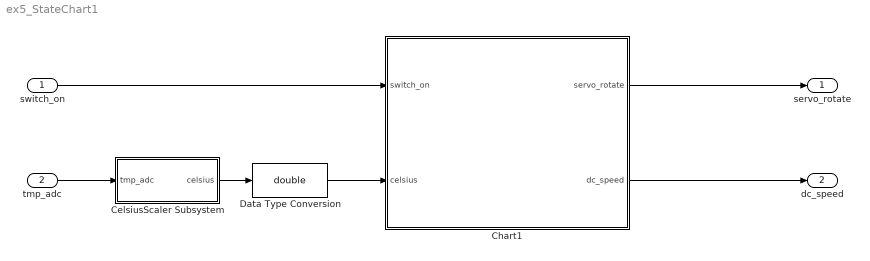
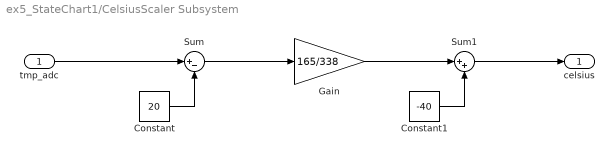
== stateflow chart ex5_StateChart1/Chart1 ==
  state DC_Motor [parallel]
    state check
    check -> check [order 1] : [ctr_dc < (DC_PERIOD / STEP_SIZE) - 1]{ctr_dc = ctr_dc + 1}
    (default) -> check
    check -> check [order 2] : [ctr_dc >= (DC_PERIOD / STEP_SIZE) - 1]{dc_speed = (celsius - 20) * 255 / (16530 / 60); ctr_dc = 0;}
  state Servo_Motor [parallel]
    state Natural
    state ClockWise
    state Counter_ClockWise
    (default) -> Natural
    Natural -> Natural [order 2] : [ctr_servo < ((SLOW_MODE_DURATION - (switch_on * (SLOW_MODE_DURATION - FAST_MODE_DURATION))) / STEP_SIZE) - 1]{ctr_servo = ctr_servo + 1}
    Counter_ClockWise -> Natural [order 2] : [ctr_servo >= (SERVO_MAX_ANGLE / SERVO_ANGLE_CHANGE) - 1]{servo_rotate = 0; ctr_servo = 0}
    Natural -> ClockWise [order 1] : [ctr_servo >= ((SLOW_MODE_DURATION - (switch_on * (SLOW_MODE_DURATION - FAST_MODE_DURATION))) / STEP_SIZE) - 1]{servo_rotate = 1; ctr_servo = 0}
    ClockWise -> ClockWise [order 2] : [ctr_servo < (SERVO_MAX_ANGLE / SERVO_ANGLE_CHANGE) - 1]{ctr_servo = ctr_servo + 1}
    ClockWise -> Counter_ClockWise [order 1] : [ctr_servo >= (SERVO_MAX_ANGLE / SERVO_ANGLE_CHANGE) - 1]{servo_rotate = -1; ctr_servo = 0}
    Counter_ClockWise -> Counter_ClockWise [order 1] : [ctr_servo < (SERVO_MAX_ANGLE / SERVO_ANGLE_CHANGE) - 1]{ctr_servo = ctr_servo + 1}
  data: SLOW_MODE_DURATION constant uint16 =10000; servo_rotate output int16 =0; FAST_MODE_DURATION constant uint16 =5000; STEP_SIZE constant uint16 =100; switch_on input uint16; ctr_dc local uint16 =0; ctr_servo local uint16 =0; SERVO_MAX_ANGLE constant uint16 =180; SERVO_ANGLE_CHANGE constant uint16 =5; DC_PERIOD constant uint16 =1000; dc_speed output double =0; celsius input double

/*
 * File: ex5_StateChart1.c
 *
 * Code generated for Simulink model 'ex5_StateChart1'.
 *
 * Model version                  : 1.30
 * Simulink Coder version         : 24.1 (R2024a) 19-Nov-2023
 * C/C++ source code generated on : Sun Dec 29 01:36:40 2024
 *
 * Target selection: ert.tlc
 * Embedded hardware selection: Atmel->AVR
 * Code generation objectives: Unspecified
 * Validation result: Not run
 */

#include "ex5_StateChart1.h"
#include "rtwtypes.h"
#include "ex5_StateChart1_private.h"

/* Named constants for Chart: '<Root>/Chart1' */
#define ex5_StateC_IN_Counter_ClockWise ((uint8_T)2U)
#define ex5_StateCha_FAST_MODE_DURATION (5000U)
#define ex5_StateChart1_IN_ClockWise   ((uint8_T)1U)
#define ex5_StateChart1_IN_Natural     ((uint8_T)3U)
#define ex5_StateChart1_STEP_SIZE      (100U)

/* Block states (default storage) */
DW_ex5_StateChart1_T ex5_StateChart1_DW;

/* External inputs (root inport signals with default storage) */
ExtU_ex5_StateChart1_T ex5_StateChart1_U;

/* External outputs (root outports fed by signals with default storage) */
ExtY_ex5_StateChart1_T ex5_StateChart1_Y;

/* Real-time model */
static RT_MODEL_ex5_StateChart1_T ex5_StateChart1_M_;
RT_MODEL_ex5_StateChart1_T *const ex5_StateChart1_M = &ex5_StateChart1_M_;

/* Model step function */
void ex5_StateChart1_step(void)
{
  uint32_T tmp;
  uint32_T tmp_0;
  int16_T z;
  uint16_T qY;

  /* Chart: '<Root>/Chart1' incorporates:
   *  Inport: '<Root>/switch_on'
   */
  if (ex5_StateChart1_DW.is_active_c2_ex5_StateChart1 == 0U) {
    ex5_StateChart1_DW.is_active_c2_ex5_StateChart1 = 1U;
    ex5_StateChart1_DW.is_Servo_Motor = ex5_StateChart1_IN_Natural;
  } else {
    switch (ex5_StateChart1_DW.is_Servo_Motor) {
     case ex5_StateChart1_IN_ClockWise:
      if (ex5_StateChart1_DW.ctr_servo >= 35U) {
        /* Outport: '<Root>/servo_rotate' */
        ex5_StateChart1_Y.servo_rotate = -1;
        ex5_StateChart1_DW.ctr_servo = 0U;
        ex5_StateChart1_DW.is_Servo_Motor = ex5_StateC_IN_Counter_ClockWise;
      } else {
        qY = ex5_StateChart1_DW.ctr_servo + /*MW:OvSatOk*/ 1U;
        if (ex5_StateChart1_DW.ctr_servo + 1U < ex5_StateChart1_DW.ctr_servo) {
          qY = MAX_uint16_T;
        }

        ex5_StateChart1_DW.ctr_servo = qY;
        ex5_StateChart1_DW.is_Servo_Motor = ex5_StateChart1_IN_ClockWise;
      }
      break;

     case ex5_StateC_IN_Counter_ClockWise:
      if (ex5_StateChart1_DW.ctr_servo < 35U) {
        qY = ex5_StateChart1_DW.ctr_servo + /*MW:OvSatOk*/ 1U;
        if (ex5_StateChart1_DW.ctr_servo + 1U < ex5_StateChart1_DW.ctr_servo) {
          qY = MAX_uint16_T;
        }

        ex5_StateChart1_DW.ctr_servo = qY;
        ex5_StateChart1_DW.is_Servo_Motor = ex5_StateC_IN_Counter_ClockWise;
      } else {
        /* Outport: '<Root>/servo_rotate' */
        ex5_StateChart1_Y.servo_rotate = 0;
        ex5_StateChart1_DW.ctr_servo = 0U;
        ex5_StateChart1_DW.is_Servo_Motor = ex5_StateChart1_IN_Natural;
      }
      break;

     default:
      /* case IN_Natural: */
      tmp_0 = (uint32_T)ex5_StateChart1_U.switch_on *
        ex5_StateCha_FAST_MODE_DURATION;
      tmp = tmp_0;
      if ((int32_T)tmp_0 > 65535L) {
        tmp = 65535UL;
      }

      /* MW:begin MISRA2012:D4.1 CERT-C:INT30-C 'Justifying MISRA CPP rule violation' */
      qY = 10000U - (uint16_T)tmp;

      /* MW:end MISRA2012:D4.1 CERT-C:INT30-C */
      if (10000U - (uint16_T)tmp > 10000U) {
        qY = 0U;
      }

      z = (int16_T)(qY / ex5_StateChart1_STEP_SIZE);
      if (qY - (uint16_T)z * ex5_StateChart1_STEP_SIZE >= 50U) {
        z = (int16_T)((uint16_T)z + 1U);
      }

      qY = (uint16_T)z - 1U;
      if ((uint16_T)z - 1U > (uint16_T)z) {
        qY = 0U;
      }

      if (ex5_StateChart1_DW.ctr_servo >= qY) {
        /* Outport: '<Root>/servo_rotate' */
        ex5_StateChart1_Y.servo_rotate = 1;
        ex5_StateChart1_DW.ctr_servo = 0U;
        ex5_StateChart1_DW.is_Servo_Motor = ex5_StateChart1_IN_ClockWise;
      } else {
        if ((int32_T)tmp_0 > 65535L) {
          tmp_0 = 65535UL;
        }

        qY = 10000U - (uint16_T)tmp_0;
        if (10000U - (uint16_T)tmp_0 > 10000U) {
          qY = 0U;
        }

        z = (int16_T)(qY / ex5_StateChart1_STEP_SIZE);
        if (qY - (uint16_T)z * ex5_StateChart1_STEP_SIZE >= 50U) {
          z = (int16_T)((uint16_T)z + 1U);
        }

        qY = (uint16_T)z - 1U;
        if ((uint16_T)z - 1U > (uint16_T)z) {
          qY = 0U;
        }

        if (ex5_StateChart1_DW.ctr_servo < qY) {
          qY = ex5_StateChart1_DW.ctr_servo + /*MW:OvSatOk*/ 1U;
          if (ex5_StateChart1_DW.ctr_servo + 1U < ex5_StateChart1_DW.ctr_servo)
          {
            qY = MAX_uint16_T;
          }

          ex5_StateChart1_DW.ctr_servo = qY;
          ex5_StateChart1_DW.is_Servo_Motor = ex5_StateChart1_IN_Natural;
        }
      }
      break;
    }

    if (ex5_StateChart1_DW.ctr_dc < 9U) {
      qY = ex5_StateChart1_DW.ctr_dc + /*MW:OvSatOk*/ 1U;
      if (ex5_StateChart1_DW.ctr_dc + 1U < ex5_StateChart1_DW.ctr_dc) {
        qY = MAX_uint16_T;
      }

      ex5_StateChart1_DW.ctr_dc = qY;
    } else {
      /* Outport: '<Root>/dc_speed' incorporates:
       *  Constant: '<S1>/Constant'
       *  DataTypeConversion: '<Root>/Data Type Conversion'
       *  Gain: '<S1>/Gain'
       *  Inport: '<Root>/tmp_adc'
       *  Sum: '<S1>/Sum'
       *  Sum: '<S1>/Sum1'
       */
      ex5_StateChart1_Y.dc_speed = (((real_T)((uint16_T)
        ((((ex5_StateChart1_U.tmp_adc << 1) - 2560U) * 63985UL) >> 16) >> 1) -
        5120.0) * 0.0078125 - 20.0) * 255.0 / 275.5;
      ex5_StateChart1_DW.ctr_dc = 0U;
    }
  }

  /* End of Chart: '<Root>/Chart1' */
}
